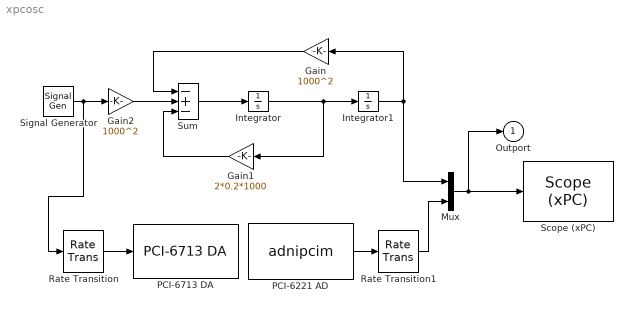
/*
 * xpcosc.c
 *
 * Code generation for model "xpcosc.mdl".
 *
 * Model version              : 1.22
 * Simulink Coder version : 8.0 (R2011a) 09-Mar-2011
 * C source code generated on : Tue Jul 09 12:17:55 2013
 *
 * Target selection: xpctarget.tlc
 * Note: GRT includes extra infrastructure and instrumentation for prototyping
 * Embedded hardware selection: Generic->32-bit x86 compatible
 * Code generation objectives: Unspecified
 * Validation result: Not run
 */

#include "rt_logging_mmi.h"
#include "xpcosc_capi.h"
#include "xpcosc.h"
#include "xpcosc_private.h"
#include <stdio.h>
#include "xpcosc_dt.h"

/* Block signals (auto storage) */
BlockIO_xpcosc xpcosc_B;

/* Continuous states */
ContinuousStates_xpcosc xpcosc_X;

/* Block states (auto storage) */
D_Work_xpcosc xpcosc_DWork;

/* External outputs (root outports fed by signals with auto storage) */
ExternalOutputs_xpcosc xpcosc_Y;

/* Real-time model */
rtModel_xpcosc xpcosc_rtM_;
rtModel_xpcosc *const xpcosc_rtM = &xpcosc_rtM_;

/*
 * This function updates continuous states using the ODE4 fixed-step
 * solver algorithm
 */
static void rt_ertODEUpdateContinuousStates(RTWSolverInfo *si )
{
  time_T t = rtsiGetT(si);
  time_T tnew = rtsiGetSolverStopTime(si);
  time_T h = rtsiGetStepSize(si);
  real_T *x = rtsiGetContStates(si);
  ODE4_IntgData *id = (ODE4_IntgData *)rtsiGetSolverData(si);
  real_T *y = id->y;
  real_T *f0 = id->f[0];
  real_T *f1 = id->f[1];
  real_T *f2 = id->f[2];
  real_T *f3 = id->f[3];
  real_T temp;
  int_T i;
  int_T nXc = 2;
  rtsiSetSimTimeStep(si,MINOR_TIME_STEP);

  /* Save the state values at time t in y, we'll use x as ynew. */
  (void) memcpy(y, x,
                nXc*sizeof(real_T));

  /* Assumes that rtsiSetT and ModelOutputs are up-to-date */
  /* f0 = f(t,y) */
  rtsiSetdX(si, f0);
  xpcosc_derivatives();

  /* f1 = f(t + (h/2), y + (h/2)*f0) */
  temp = 0.5 * h;
  for (i = 0; i < nXc; i++) {
    x[i] = y[i] + (temp*f0[i]);
  }

  rtsiSetT(si, t + temp);
  rtsiSetdX(si, f1);
  xpcosc_output(0);
  xpcosc_derivatives();

  /* f2 = f(t + (h/2), y + (h/2)*f1) */
  for (i = 0; i < nXc; i++) {
    x[i] = y[i] + (temp*f1[i]);
  }

  rtsiSetdX(si, f2);
  xpcosc_output(0);
  xpcosc_derivatives();

  /* f3 = f(t + h, y + h*f2) */
  for (i = 0; i < nXc; i++) {
    x[i] = y[i] + (h*f2[i]);
  }

  rtsiSetT(si, tnew);
  rtsiSetdX(si, f3);
  xpcosc_output(0);
  xpcosc_derivatives();

  /* tnew = t + h
     ynew = y + (h/6)*(f0 + 2*f1 + 2*f2 + 2*f3) */
  temp = h / 6.0;
  for (i = 0; i < nXc; i++) {
    x[i] = y[i] + temp*(f0[i] + 2.0*f1[i] + 2.0*f2[i] + f3[i]);
  }

  rtsiSetSimTimeStep(si,MAJOR_TIME_STEP);
}

/* Model output function */
void xpcosc_output(int_T tid)
{
  real_T temp;
  if (rtmIsMajorTimeStep(xpcosc_rtM)) {
    /* set solver stop time */
    if (!(xpcosc_rtM->Timing.clockTick0+1)) {
      rtsiSetSolverStopTime(&xpcosc_rtM->solverInfo,
                            ((xpcosc_rtM->Timing.clockTickH0 + 1) *
        xpcosc_rtM->Timing.stepSize0 * 4294967296.0));
    } else {
      rtsiSetSolverStopTime(&xpcosc_rtM->solverInfo,
                            ((xpcosc_rtM->Timing.clockTick0 + 1) *
        xpcosc_rtM->Timing.stepSize0 + xpcosc_rtM->Timing.clockTickH0 *
        xpcosc_rtM->Timing.stepSize0 * 4294967296.0));
    }
  }                                    /* end MajorTimeStep */

  /* Update absolute time of base rate at minor time step */
  if (rtmIsMinorTimeStep(xpcosc_rtM)) {
    xpcosc_rtM->Timing.t[0] = rtsiGetT(&xpcosc_rtM->solverInfo);
  }

  /* Integrator: '<Root>/Integrator1' */
  xpcosc_B.Integrator1 = xpcosc_X.Integrator1_CSTATE;
  if (rtmIsMajorTimeStep(xpcosc_rtM)) {
    /* Level2 S-Function Block: '<Root>/PCI-6221 AD' (adnipcim) */
    {
      SimStruct *rts = xpcosc_rtM->childSfunctions[0];
      sfcnOutputs(rts, 1);
    }

    /* RateTransition: '<Root>/Rate Transition1' */
    if (rtmIsMajorTimeStep(xpcosc_rtM)) {
      xpcosc_B.RateTransition1 = xpcosc_B.PCI6221AD;
    }

    /* End of RateTransition: '<Root>/Rate Transition1' */
  }

  /* Outport: '<Root>/Outport' */
  xpcosc_Y.Outport[0] = xpcosc_B.Integrator1;
  xpcosc_Y.Outport[1] = xpcosc_B.RateTransition1;

  /* SignalGenerator: '<Root>/Signal Generator' */
  temp = xpcosc_P.SignalGenerator_Frequency * xpcosc_rtM->Timing.t[0];
  if (temp - floor(temp) >= 0.5) {
    xpcosc_B.SignalGenerator = xpcosc_P.SignalGenerator_Amplitude;
  } else {
    xpcosc_B.SignalGenerator = -xpcosc_P.SignalGenerator_Amplitude;
  }

  /* End of SignalGenerator: '<Root>/Signal Generator' */

  /* RateTransition: '<Root>/Rate Transition' */
  if (rtmIsMajorTimeStep(xpcosc_rtM)) {
    xpcosc_B.RateTransition = xpcosc_B.SignalGenerator;

    /* Level2 S-Function Block: '<Root>/PCI-6713 DA' (danipci671x) */
    {
      SimStruct *rts = xpcosc_rtM->childSfunctions[1];
      sfcnOutputs(rts, 1);
    }
  }

  /* End of RateTransition: '<Root>/Rate Transition' */
  /* ok to acquire for <S1>/S-Function */
  xpcosc_DWork.SFunction_IWORK.AcquireOK = 1;

  /* Gain: '<Root>/Gain' */
  xpcosc_B.Gain = xpcosc_P.Gain_Gain * xpcosc_B.Integrator1;

  /* Integrator: '<Root>/Integrator' */
  xpcosc_B.Integrator = xpcosc_X.Integrator_CSTATE;

  /* Gain: '<Root>/Gain1' */
  xpcosc_B.Gain1 = xpcosc_P.Gain1_Gain * xpcosc_B.Integrator;

  /* Gain: '<Root>/Gain2' */
  xpcosc_B.Gain2 = xpcosc_P.Gain2_Gain * xpcosc_B.SignalGenerator;

  /* Sum: '<Root>/Sum' */
  xpcosc_B.Sum = (xpcosc_B.Gain2 - xpcosc_B.Gain) - xpcosc_B.Gain1;

  /* tid is required for a uniform function interface.
   * Argument tid is not used in the function. */
  UNUSED_PARAMETER(tid);
}

/* Model update function */
void xpcosc_update(int_T tid)
{
  if (rtmIsMajorTimeStep(xpcosc_rtM)) {
    rt_ertODEUpdateContinuousStates(&xpcosc_rtM->solverInfo);
  }

  /* Update absolute time for base rate */
  /* The "clockTick0" counts the number of times the code of this task has
   * been executed. The absolute time is the multiplication of "clockTick0"
   * and "Timing.stepSize0". Size of "clockTick0" ensures timer will not
   * overflow during the application lifespan selected.
   * Timer of this task consists of two 32 bit unsigned integers.
   * The two integers represent the low bits Timing.clockTick0 and the high bits
   * Timing.clockTickH0. When the low bit overflows to 0, the high bits increment.
   */
  if (!(++xpcosc_rtM->Timing.clockTick0)) {
    ++xpcosc_rtM->Timing.clockTickH0;
  }

  xpcosc_rtM->Timing.t[0] = rtsiGetSolverStopTime(&xpcosc_rtM->solverInfo);

  {
    /* Update absolute timer for sample time: [0.001s, 0.0s] */
    /* The "clockTick1" counts the number of times the code of this task has
     * been executed. The absolute time is the multiplication of "clockTick1"
     * and "Timing.stepSize1". Size of "clockTick1" ensures timer will not
     * overflow during the application lifespan selected.
     * Timer of this task consists of two 32 bit unsigned integers.
     * The two integers represent the low bits Timing.clockTick1 and the high bits
     * Timing.clockTickH1. When the low bit overflows to 0, the high bits increment.
     */
    if (!(++xpcosc_rtM->Timing.clockTick1)) {
      ++xpcosc_rtM->Timing.clockTickH1;
    }

    xpcosc_rtM->Timing.t[1] = xpcosc_rtM->Timing.clockTick1 *
      xpcosc_rtM->Timing.stepSize1 + xpcosc_rtM->Timing.clockTickH1 *
      xpcosc_rtM->Timing.stepSize1 * 4294967296.0;
  }

  /* tid is required for a uniform function interface.
   * Argument tid is not used in the function. */
  UNUSED_PARAMETER(tid);
}
